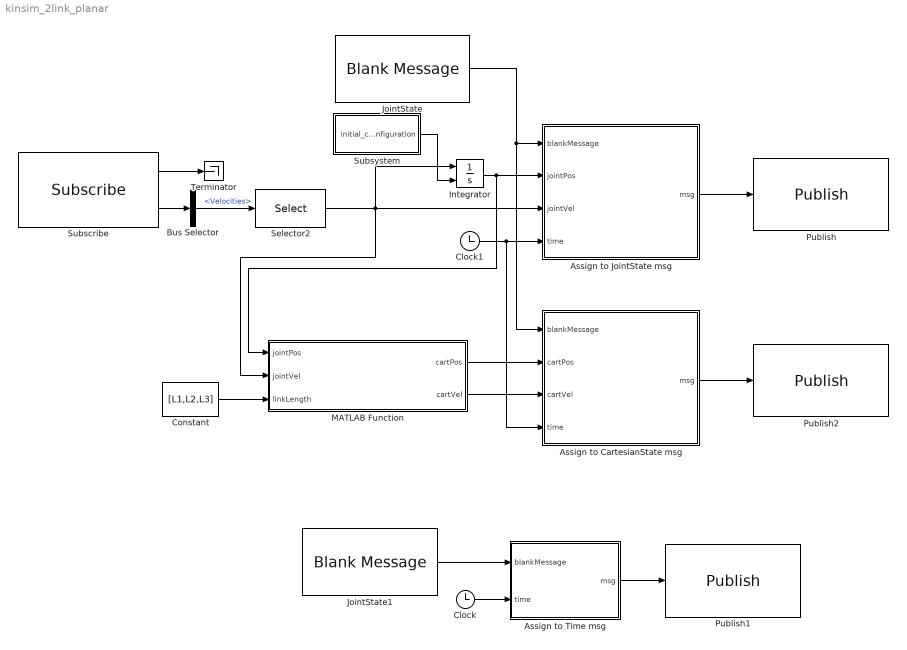
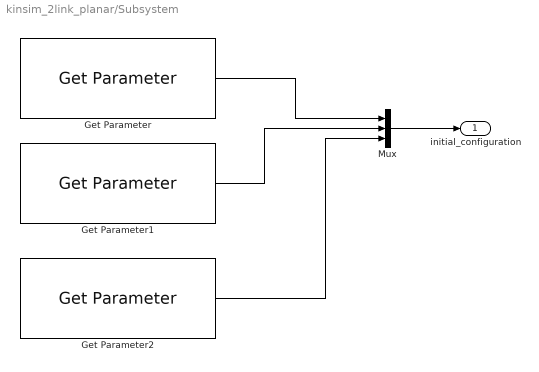
== matlab function kinsim_2link_planar/Assign to Time msg ==
function msg = assign_Time(blankMessage,time)
%#codegen

% Assign the output message to be the same with input blank message
msg = blankMessage;

% Convert and set time
msg.Clock_.Sec  = fix(time);
msg.Clock_.Nsec = fix((time-fix(time))*1e9);

== matlab function kinsim_2link_planar/Assign to JointState msg ==
function msg = assign_JointState(blankMessage,jointPos,jointVel,time)
%#codegen

% Assign the output message to be the same with input blank message
msg = blankMessage;

% Initialize time stamp
msg.Header.Stamp.Sec  = fix(time);
msg.Header.Stamp.Nsec = fix((time-fix(time))*1e9);

% Set the number of strings in the string array, and joint positions/velocities in the position/velocity array
numJoints = length(jointPos);
msg.Name_SL_Info.CurrentLength = uint32(numJoints);
msg.Position_SL_Info.CurrentLength = uint32(numJoints);
msg.Velocity_SL_Info.CurrentLength = uint32(numJoints);

% Set the individual components in the message arrays
strArrayToAssign = {'arm_joint', 'forearm_joint', 'ultimoarm_joint'};

for idx=1:numJoints
    str = strArrayToAssign{idx};
    strLength = length(str);
    msg.Name(idx).Data(1:strLength) = uint8(str);
    msg.Name(idx).Data_SL_Info.CurrentLength = uint32(strLength);

    msg.Position(idx) = jointPos(idx);
    msg.Velocity(idx) = jointVel(idx);
end

== matlab function kinsim_2link_planar/MATLAB Function ==
function [cartPos, cartVel] = forward_kinematics_2link(jointPos,jointVel,linkLength)

cartPos = zeros(1,2);
cartVel = zeros(1,2);

L1 = linkLength(1);
L2 = linkLength(2);
L3 = linkLength(3);
q1 = jointPos(1);
q2 = jointPos(2);
q3 = jointPos(3);
qv1 = jointVel(1);
qv2 = jointVel(2);
qv3 = jointVel(3);

cartPos(1) = L1*cos(q1)+L2*cos(q1+q2)+L3*cos(q1+q2+q3);
cartPos(2) = L1*sin(q1)+L2*sin(q1+q2)+L3*sin(q1+q2+q3);
cartVel(1) = -L1*qv1*sin(q1)-L2*(qv1+qv2)*sin(q1+q2)-L3*(qv1+qv2+qv3)*sin(q1+q2+q3);
cartVel(2) = L1*qv1*cos(q1)+L2*(qv1+qv2)*cos(q1+q2)+L3*(qv1+qv2+qv3)*cos(q1+q2+q3);

== matlab function kinsim_2link_planar/Assign to CartesianState msg ==
function msg = assign_CartesianState(blankMessage,cartPos,cartVel,time)
%#codegen

% Assign the output message to be the same with input blank message
msg = blankMessage;

% Initialize time stamp
msg.Header.Stamp.Sec  = fix(time);
msg.Header.Stamp.Nsec = fix((time-fix(time))*1e9);

% Set the number of strings in the string array, and joint positions/velocities in the position/velocity array
numCoordinates = length(cartPos);
msg.Name_SL_Info.CurrentLength = uint32(numCoordinates);
msg.Position_SL_Info.CurrentLength = uint32(numCoordinates);
msg.Velocity_SL_Info.CurrentLength = uint32(numCoordinates);

% Set the individual components in the message arrays
strArrayToAssign = {'arm_joint', 'forearm_joint', 'ultimoarm_joint'};

for idx=1:numCoordinates
    str = strArrayToAssign{idx};
    strLength = length(str);
    msg.Name(idx).Data(1:strLength) = uint8(str);
    msg.Name(idx).Data_SL_Info.CurrentLength = uint32(strLength);

    msg.Position(idx) = cartPos(idx);
    msg.Velocity(idx) = cartVel(idx);
end

//
// Academic License - for use in teaching, academic research, and meeting
// course requirements at degree granting institutions only.  Not for
// government, commercial, or other organizational use.
//
// File: kinsim_2link_planar.cpp
//
// Code generated for Simulink model 'kinsim_2link_planar'.
//
// Model version                  : 1.118
// Simulink Coder version         : 9.3 (R2020a) 18-Nov-2019
// C/C++ source code generated on : Wed May  6 12:18:09 2020
//
// Target selection: ert.tlc
// Embedded hardware selection: Generic->Unspecified (assume 32-bit Generic)
// Code generation objectives: Unspecified
// Validation result: Not run
//
#include "kinsim_2link_planar.h"
#include "kinsim_2link_planar_private.h"

// Block signals (default storage)
B_kinsim_2link_planar_T kinsim_2link_planar_B;

// Continuous states
X_kinsim_2link_planar_T kinsim_2link_planar_X;

// Block states (default storage)
DW_kinsim_2link_planar_T kinsim_2link_planar_DW;

// Real-time model
RT_MODEL_kinsim_2link_planar_T kinsim_2link_planar_M_ =
  RT_MODEL_kinsim_2link_planar_T();
RT_MODEL_kinsim_2link_planar_T *const kinsim_2link_planar_M =
  &kinsim_2link_planar_M_;

// Forward declaration for local functions
static void kinsim_2link_pl_SystemCore_step(boolean_T *varargout_1, real_T
  varargout_2_Positions[128], uint32_T *varargout_2_Positions_SL_Info_C,
  uint32_T *varargout_2_Positions_SL_Info_R, real_T varargout_2_Velocities[128],
  uint32_T *varargout_2_Velocities_SL_Info_, uint32_T
  *varargout_2_Velocities_SL_Inf_0, real_T varargout_2_Accelerations[128],
  uint32_T *varargout_2_Accelerations_SL_In, uint32_T
  *varargout_2_Accelerations_SL__0, real_T varargout_2_Effort[128], uint32_T
  *varargout_2_Effort_SL_Info_Curr, uint32_T *varargout_2_Effort_SL_Info_Rece,
  real_T *varargout_2_TimeFromStart_Sec, real_T *varargout_2_TimeFromStart_Nsec);
static void matlabCodegenHandle_matlab_li5a(ros_slros_internal_block_GetP_T *obj);
static void matlabCodegenHandle_matlabC_li5(ros_slros_internal_block_Subs_T *obj);
static void matlabCodegenHandle_matlabCodeg(ros_slros_internal_block_Publ_T *obj);

//
// This function updates continuous states using the ODE3 fixed-step
// solver algorithm
//
static void rt_ertODEUpdateContinuousStates(RTWSolverInfo *si )
{
  // Solver Matrices
  static const real_T rt_ODE3_A[3] = {
    1.0/2.0, 3.0/4.0, 1.0
  };

  static const real_T rt_ODE3_B[3][3] = {
    { 1.0/2.0, 0.0, 0.0 },

    { 0.0, 3.0/4.0, 0.0 },

    { 2.0/9.0, 1.0/3.0, 4.0/9.0 }
  };

  time_T t = rtsiGetT(si);
  time_T tnew = rtsiGetSolverStopTime(si);
  time_T h = rtsiGetStepSize(si);
  real_T *x = rtsiGetContStates(si);
  ODE3_IntgData *id = static_cast<ODE3_IntgData *>(rtsiGetSolverData(si));
  real_T *y = id->y;
  real_T *f0 = id->f[0];
  real_T *f1 = id->f[1];
  real_T *f2 = id->f[2];
  real_T hB[3];
  int_T i;
  int_T nXc = 3;
  rtsiSetSimTimeStep(si,MINOR_TIME_STEP);

  // Save the state values at time t in y, we'll use x as ynew.
  (void) memcpy(y, x,
                static_cast<uint_T>(nXc)*sizeof(real_T));

  // Assumes that rtsiSetT and ModelOutputs are up-to-date
  // f0 = f(t,y)
  rtsiSetdX(si, f0);
  kinsim_2link_planar_derivatives();

  // f(:,2) = feval(odefile, t + hA(1), y + f*hB(:,1), args(:)(*));
  hB[0] = h * rt_ODE3_B[0][0];
  for (i = 0; i < nXc; i++) {
    x[i] = y[i] + (f0[i]*hB[0]);
  }

  rtsiSetT(si, t + h*rt_ODE3_A[0]);
  rtsiSetdX(si, f1);
  kinsim_2link_planar_step();
  kinsim_2link_planar_derivatives();

  // f(:,3) = feval(odefile, t + hA(2), y + f*hB(:,2), args(:)(*));
  for (i = 0; i <= 1; i++) {
    hB[i] = h * rt_ODE3_B[1][i];
  }

  for (i = 0; i < nXc; i++) {
    x[i] = y[i] + (f0[i]*hB[0] + f1[i]*hB[1]);
  }

  rtsiSetT(si, t + h*rt_ODE3_A[1]);
  rtsiSetdX(si, f2);
  kinsim_2link_planar_step();
  kinsim_2link_planar_derivatives();

  // tnew = t + hA(3);
  // ynew = y + f*hB(:,3);
  for (i = 0; i <= 2; i++) {
    hB[i] = h * rt_ODE3_B[2][i];
  }

  for (i = 0; i < nXc; i++) {
    x[i] = y[i] + (f0[i]*hB[0] + f1[i]*hB[1] + f2[i]*hB[2]);
  }

  rtsiSetT(si, tnew);
  rtsiSetSimTimeStep(si,MAJOR_TIME_STEP);
}

static void kinsim_2link_pl_SystemCore_step(boolean_T *varargout_1, real_T
  varargout_2_Positions[128], uint32_T *varargout_2_Positions_SL_Info_C,
  uint32_T *varargout_2_Positions_SL_Info_R, real_T varargout_2_Velocities[128],
  uint32_T *varargout_2_Velocities_SL_Info_, uint32_T
  *varargout_2_Velocities_SL_Inf_0, real_T varargout_2_Accelerations[128],
  uint32_T *varargout_2_Accelerations_SL_In, uint32_T
  *varargout_2_Accelerations_SL__0, real_T varargout_2_Effort[128], uint32_T
  *varargout_2_Effort_SL_Info_Curr, uint32_T *varargout_2_Effort_SL_Info_Rece,
  real_T *varargout_2_TimeFromStart_Sec, real_T *varargout_2_TimeFromStart_Nsec)
{
  *varargout_1 = Sub_kinsim_2link_planar_16.getLatestMessage
    (&kinsim_2link_planar_B.b_varargout_2);
  *varargout_2_Positions_SL_Info_C =
    kinsim_2link_planar_B.b_varargout_2.Positions_SL_Info.CurrentLength;
  *varargout_2_Positions_SL_Info_R =
    kinsim_2link_planar_B.b_varargout_2.Positions_SL_Info.ReceivedLength;
  *varargout_2_Velocities_SL_Info_ =
    kinsim_2link_planar_B.b_varargout_2.Velocities_SL_Info.CurrentLength;
  *varargout_2_Velocities_SL_Inf_0 =
    kinsim_2link_planar_B.b_varargout_2.Velocities_SL_Info.ReceivedLength;
  *varargout_2_Accelerations_SL_In =
    kinsim_2link_planar_B.b_varargout_2.Accelerations_SL_Info.CurrentLength;
  *varargout_2_Accelerations_SL__0 =
    kinsim_2link_planar_B.b_varargout_2.Accelerations_SL_Info.ReceivedLength;
  memcpy(&varargout_2_Positions[0],
         &kinsim_2link_planar_B.b_varargout_2.Positions[0], sizeof(real_T) << 7U);
  memcpy(&varargout_2_Velocities[0],
         &kinsim_2link_planar_B.b_varargout_2.Velocities[0], sizeof(real_T) <<
         7U);
  memcpy(&varargout_2_Accelerations[0],
         &kinsim_2link_planar_B.b_varargout_2.Accelerations[0], sizeof(real_T) <<
         7U);
  memcpy(&varargout_2_Effort[0], &kinsim_2link_planar_B.b_varargout_2.Effort[0],
         sizeof(real_T) << 7U);
  *varargout_2_Effort_SL_Info_Curr =
    kinsim_2link_planar_B.b_varargout_2.Effort_SL_Info.CurrentLength;
  *varargout_2_Effort_SL_Info_Rece =
    kinsim_2link_planar_B.b_varargout_2.Effort_SL_Info.ReceivedLength;
  *varargout_2_TimeFromStart_Sec =
    kinsim_2link_planar_B.b_varargout_2.TimeFromStart.Sec;
  *varargout_2_TimeFromStart_Nsec =
    kinsim_2link_planar_B.b_varargout_2.TimeFromStart.Nsec;
}

static void matlabCodegenHandle_matlab_li5a(ros_slros_internal_block_GetP_T *obj)
{
  if (!obj->matlabCodegenIsDeleted) {
    obj->matlabCodegenIsDeleted = true;
  }
}

static void matlabCodegenHandle_matlabC_li5(ros_slros_internal_block_Subs_T *obj)
{
  if (!obj->matlabCodegenIsDeleted) {
    obj->matlabCodegenIsDeleted = true;
  }
}

static void matlabCodegenHandle_matlabCodeg(ros_slros_internal_block_Publ_T *obj)
{
  if (!obj->matlabCodegenIsDeleted) {
    obj->matlabCodegenIsDeleted = true;
  }
}

// Model step function
void kinsim_2link_planar_step(void)
{
  uint32_T b_varargout_2_Positions_SL_Info;
  uint32_T b_varargout_2_Positions_SL_In_0;
  uint32_T b_varargout_2_Velocities_SL_Inf;
  uint32_T b_varargout_2_Velocities_SL_I_0;
  uint32_T b_varargout_2_Accelerations_SL_;
  uint32_T b_varargout_2_Accelerations_S_0;
  uint32_T b_varargout_2_Effort_SL_Info_Cu;
  uint32_T b_varargout_2_Effort_SL_Info_Re;
  boolean_T b_varargout_1;
  int32_T i;
  real_T tmp;
  real_T tmp_0;
  real_T tmp_1;
  static const char_T b[9] = { 'a', 'r', 'm', '_', 'j', 'o', 'i', 'n', 't' };

  static const char_T c[13] = { 'f', 'o', 'r', 'e', 'a', 'r', 'm', '_', 'j', 'o',
    'i', 'n', 't' };

  static const char_T d[15] = { 'u', 'l', 't', 'i', 'm', 'o', 'a', 'r', 'm', '_',
    'j', 'o', 'i', 'n', 't' };

  if (rtmIsMajorTimeStep(kinsim_2link_planar_M)) {
    // set solver stop time
    rtsiSetSolverStopTime(&kinsim_2link_planar_M->solverInfo,
                          ((kinsim_2link_planar_M->Timing.clockTick0+1)*
      kinsim_2link_planar_M->Timing.stepSize0));
  }                                    // end MajorTimeStep

  // Update absolute time of base rate at minor time step
  if (rtmIsMinorTimeStep(kinsim_2link_planar_M)) {
    kinsim_2link_planar_M->Timing.t[0] = rtsiGetT
      (&kinsim_2link_planar_M->solverInfo);
  }

  // MATLABSystem: '<S11>/Get Parameter'
  ParamGet_kinsim_2link_planar_61.get_parameter(&kinsim_2link_planar_B.value);

  // MATLABSystem: '<S11>/Get Parameter1'
  ParamGet_kinsim_2link_planar_65.get_parameter(&kinsim_2link_planar_B.value_m);

  // MATLABSystem: '<S11>/Get Parameter2'
  ParamGet_kinsim_2link_planar_81.get_parameter(&kinsim_2link_planar_B.value_c);

  // Integrator: '<Root>/Integrator' incorporates:
  //   MATLABSystem: '<S11>/Get Parameter'
  //   MATLABSystem: '<S11>/Get Parameter1'
  //   MATLABSystem: '<S11>/Get Parameter2'

  if (kinsim_2link_planar_DW.Integrator_IWORK != 0) {
    kinsim_2link_planar_X.Integrator_CSTATE[0] = kinsim_2link_planar_B.value;
    kinsim_2link_planar_X.Integrator_CSTATE[1] = kinsim_2link_planar_B.value_m;
    kinsim_2link_planar_X.Integrator_CSTATE[2] = kinsim_2link_planar_B.value_c;
  }

  if (rtmIsMajorTimeStep(kinsim_2link_planar_M)) {
    // Outputs for Atomic SubSystem: '<Root>/Subscribe'
    // MATLABSystem: '<S10>/SourceBlock' incorporates:
    //   Inport: '<S12>/In1'

    kinsim_2link_pl_SystemCore_step(&b_varargout_1,
      kinsim_2link_planar_B.b_varargout_2_Positions,
      &b_varargout_2_Positions_SL_Info, &b_varargout_2_Positions_SL_In_0,
      kinsim_2link_planar_B.b_varargout_2_Velocities,
      &b_varargout_2_Velocities_SL_Inf, &b_varargout_2_Velocities_SL_I_0,
      kinsim_2link_planar_B.b_varargout_2_Accelerations,
      &b_varargout_2_Accelerations_SL_, &b_varargout_2_Accelerations_S_0,
      kinsim_2link_planar_B.b_varargout_2_Effort,
      &b_varargout_2_Effort_SL_Info_Cu, &b_varargout_2_Effort_SL_Info_Re,
      &kinsim_2link_planar_B.value, &kinsim_2link_planar_B.value_m);

    // Outputs for Enabled SubSystem: '<S10>/Enabled Subsystem' incorporates:
    //   EnablePort: '<S12>/Enable'

    if (b_varargout_1) {
      kinsim_2link_planar_B.In1.Positions_SL_Info.CurrentLength =
        b_varargout_2_Positions_SL_Info;
      kinsim_2link_planar_B.In1.Positions_SL_Info.ReceivedLength =
        b_varargout_2_Positions_SL_In_0;
      kinsim_2link_planar_B.In1.Velocities_SL_Info.CurrentLength =
        b_varargout_2_Velocities_SL_Inf;
      kinsim_2link_planar_B.In1.Velocities_SL_Info.ReceivedLength =
        b_varargout_2_Velocities_SL_I_0;
      kinsim_2link_planar_B.In1.Accelerations_SL_Info.CurrentLength =
        b_varargout_2_Accelerations_SL_;
      kinsim_2link_planar_B.In1.Accelerations_SL_Info.ReceivedLength =
        b_varargout_2_Accelerations_S_0;
      memcpy(&kinsim_2link_planar_B.In1.Positions[0],
             &kinsim_2link_planar_B.b_varargout_2_Positions[0], sizeof(real_T) <<
             7U);
      memcpy(&kinsim_2link_planar_B.In1.Velocities[0],
             &kinsim_2link_planar_B.b_varargout_2_Velocities[0], sizeof(real_T) <<
             7U);
      memcpy(&kinsim_2link_planar_B.In1.Accelerations[0],
             &kinsim_2link_planar_B.b_varargout_2_Accelerations[0], sizeof
             (real_T) << 7U);
      memcpy(&kinsim_2link_planar_B.In1.Effort[0],
             &kinsim_2link_planar_B.b_varargout_2_Effort[0], sizeof(real_T) <<
             7U);
      kinsim_2link_planar_B.In1.Effort_SL_Info.CurrentLength =
        b_varargout_2_Effort_SL_Info_Cu;
      kinsim_2link_planar_B.In1.Effort_SL_Info.ReceivedLength =
        b_varargout_2_Effort_SL_Info_Re;
      kinsim_2link_planar_B.In1.TimeFromStart.Sec = kinsim_2link_planar_B.value;
      kinsim_2link_planar_B.In1.TimeFromStart.Nsec =
        kinsim_2link_planar_B.value_m;
    }

    // End of MATLABSystem: '<S10>/SourceBlock'
    // End of Outputs for SubSystem: '<S10>/Enabled Subsystem'
    // End of Outputs for SubSystem: '<Root>/Subscribe'
  }

  // Clock: '<Root>/Clock1' incorporates:
  //   Clock: '<Root>/Clock'

  kinsim_2link_planar_B.value = kinsim_2link_planar_M->Timing.t[0];

  // MATLAB Function: '<Root>/Assign to CartesianState msg' incorporates:
  //   Clock: '<Root>/Clock1'
  //   Constant: '<S4>/Constant'

  kinsim_2link_planar_B.msg_d = kinsim_2link_planar_P.Constant_Value;
  if (kinsim_2link_planar_B.value < 0.0) {
    // MATLAB Function: '<Root>/Assign to JointState msg'
    kinsim_2link_planar_B.value_m = ceil(kinsim_2link_planar_B.value);
  } else {
    // MATLAB Function: '<Root>/Assign to JointState msg'
    kinsim_2link_planar_B.value_m = floor(kinsim_2link_planar_B.value);
  }

  kinsim_2link_planar_B.msg_d.Header.Stamp.Sec = kinsim_2link_planar_B.value_m;
  kinsim_2link_planar_B.value_c = (kinsim_2link_planar_B.value -
    kinsim_2link_planar_B.value_m) * 1.0E+9;
  if (kinsim_2link_planar_B.value_c < 0.0) {
    // MATLAB Function: '<Root>/Assign to JointState msg'
    kinsim_2link_planar_B.value_c = ceil(kinsim_2link_planar_B.value_c);
  } else {
    // MATLAB Function: '<Root>/Assign to JointState msg'
    kinsim_2link_planar_B.value_c = floor(kinsim_2link_planar_B.value_c);
  }

  kinsim_2link_planar_B.msg_d.Header.Stamp.Nsec = kinsim_2link_planar_B.value_c;
  kinsim_2link_planar_B.msg_d.Name_SL_Info.CurrentLength = 2U;
  kinsim_2link_planar_B.msg_d.Position_SL_Info.CurrentLength = 2U;
  kinsim_2link_planar_B.msg_d.Velocity_SL_Info.CurrentLength = 2U;
  for (i = 0; i < 9; i++) {
    kinsim_2link_planar_B.msg_d.Name[0].Data[i] = static_cast<uint8_T>(b[i]);
  }

  kinsim_2link_planar_B.msg_d.Name[0].Data_SL_Info.CurrentLength = 9U;

  // MATLAB Function: '<Root>/MATLAB Function' incorporates:
  //   Integrator: '<Root>/Integrator'

  kinsim_2link_planar_B.d1 = cos(kinsim_2link_planar_X.Integrator_CSTATE[0]);
  kinsim_2link_planar_B.d4 = kinsim_2link_planar_X.Integrator_CSTATE[0] +
    kinsim_2link_planar_X.Integrator_CSTATE[1];
  kinsim_2link_planar_B.d2 = cos(kinsim_2link_planar_B.d4);
  tmp = kinsim_2link_planar_B.d4 + kinsim_2link_planar_X.Integrator_CSTATE[2];
  kinsim_2link_planar_B.d3 = cos(tmp);

  // MATLAB Function: '<Root>/Assign to CartesianState msg' incorporates:
  //   Constant: '<Root>/Constant'
  //   MATLAB Function: '<Root>/MATLAB Function'

  kinsim_2link_planar_B.msg_d.Position[0] =
    (kinsim_2link_planar_P.Constant_Value_m[0] * kinsim_2link_planar_B.d1 +
     kinsim_2link_planar_P.Constant_Value_m[1] * kinsim_2link_planar_B.d2) +
    kinsim_2link_planar_P.Constant_Value_m[2] * kinsim_2link_planar_B.d3;

  // MATLAB Function: '<Root>/MATLAB Function' incorporates:
  //   Constant: '<Root>/Constant'
  //   Integrator: '<Root>/Integrator'

  kinsim_2link_planar_B.d = sin(kinsim_2link_planar_X.Integrator_CSTATE[0]);
  kinsim_2link_planar_B.d4 = sin(kinsim_2link_planar_B.d4);
  tmp = sin(tmp);
  tmp_0 = kinsim_2link_planar_B.In1.Velocities[0] +
    kinsim_2link_planar_B.In1.Velocities[1];
  tmp_1 = tmp_0 * kinsim_2link_planar_P.Constant_Value_m[1];
  tmp_0 = (tmp_0 + kinsim_2link_planar_B.In1.Velocities[2]) *
    kinsim_2link_planar_P.Constant_Value_m[2];

  // MATLAB Function: '<Root>/Assign to CartesianState msg' incorporates:
  //   Constant: '<Root>/Constant'
  //   MATLAB Function: '<Root>/MATLAB Function'

  kinsim_2link_planar_B.msg_d.Velocity[0] =
    (-kinsim_2link_planar_P.Constant_Value_m[0] *
     kinsim_2link_planar_B.In1.Velocities[0] * kinsim_2link_planar_B.d - tmp_1 *
     kinsim_2link_planar_B.d4) - tmp_0 * tmp;
  for (i = 0; i < 13; i++) {
    kinsim_2link_planar_B.msg_d.Name[1].Data[i] = static_cast<uint8_T>(c[i]);
  }

  kinsim_2link_planar_B.msg_d.Name[1].Data_SL_Info.CurrentLength = 13U;
  kinsim_2link_planar_B.msg_d.Position[1] =
    (kinsim_2link_planar_P.Constant_Value_m[0] * kinsim_2link_planar_B.d +
     kinsim_2link_planar_P.Constant_Value_m[1] * kinsim_2link_planar_B.d4) +
    kinsim_2link_planar_P.Constant_Value_m[2] * tmp;
  kinsim_2link_planar_B.msg_d.Velocity[1] = (tmp_1 * kinsim_2link_planar_B.d2 +
    kinsim_2link_planar_P.Constant_Value_m[0] *
    kinsim_2link_planar_B.In1.Velocities[0] * kinsim_2link_planar_B.d1) + tmp_0 *
    kinsim_2link_planar_B.d3;

  // Outputs for Atomic SubSystem: '<Root>/Publish2'
  // MATLABSystem: '<S9>/SinkBlock'
  Pub_kinsim_2link_planar_79.publish(&kinsim_2link_planar_B.msg_d);

  // End of Outputs for SubSystem: '<Root>/Publish2'

  // MATLAB Function: '<Root>/Assign to JointState msg' incorporates:
  //   Constant: '<S4>/Constant'
  //   Integrator: '<Root>/Integrator'

  kinsim_2link_planar_B.msg_d = kinsim_2link_planar_P.Constant_Value;
  kinsim_2link_planar_B.msg_d.Header.Stamp.Sec = kinsim_2link_planar_B.value_m;
  kinsim_2link_planar_B.msg_d.Header.Stamp.Nsec = kinsim_2link_planar_B.value_c;
  kinsim_2link_planar_B.msg_d.Name_SL_Info.CurrentLength = 3U;
  kinsim_2link_planar_B.msg_d.Position_SL_Info.CurrentLength = 3U;
  kinsim_2link_planar_B.msg_d.Velocity_SL_Info.CurrentLength = 3U;
  for (i = 0; i < 9; i++) {
    kinsim_2link_planar_B.msg_d.Name[0].Data[i] = static_cast<uint8_T>(b[i]);
  }

  kinsim_2link_planar_B.msg_d.Name[0].Data_SL_Info.CurrentLength = 9U;
  kinsim_2link_planar_B.msg_d.Position[0] =
    kinsim_2link_planar_X.Integrator_CSTATE[0];
  kinsim_2link_planar_B.msg_d.Velocity[0] =
    kinsim_2link_planar_B.In1.Velocities[0];
  for (i = 0; i < 13; i++) {
    kinsim_2link_planar_B.msg_d.Name[1].Data[i] = static_cast<uint8_T>(c[i]);
  }

  kinsim_2link_planar_B.msg_d.Name[1].Data_SL_Info.CurrentLength = 13U;
  kinsim_2link_planar_B.msg_d.Position[1] =
    kinsim_2link_planar_X.Integrator_CSTATE[1];
  kinsim_2link_planar_B.msg_d.Velocity[1] =
    kinsim_2link_planar_B.In1.Velocities[1];
  for (i = 0; i < 15; i++) {
    kinsim_2link_planar_B.msg_d.Name[2].Data[i] = static_cast<uint8_T>(d[i]);
  }

  kinsim_2link_planar_B.msg_d.Name[2].Data_SL_Info.CurrentLength = 15U;
  kinsim_2link_planar_B.msg_d.Position[2] =
    kinsim_2link_planar_X.Integrator_CSTATE[2];
  kinsim_2link_planar_B.msg_d.Velocity[2] =
    kinsim_2link_planar_B.In1.Velocities[2];

  // Outputs for Atomic SubSystem: '<Root>/Publish'
  // MATLABSystem: '<S7>/SinkBlock'
  Pub_kinsim_2link_planar_22.publish(&kinsim_2link_planar_B.msg_d);

  // End of Outputs for SubSystem: '<Root>/Publish'

  // MATLAB Function: '<Root>/Assign to Time msg'
  if (kinsim_2link_planar_B.value < 0.0) {
    kinsim_2link_planar_B.value_m = ceil(kinsim_2link_planar_B.value);
  } else {
    kinsim_2link_planar_B.value_m = floor(kinsim_2link_planar_B.value);
  }

  kinsim_2link_planar_B.msg_l.Clock_.Sec = kinsim_2link_planar_B.value_m;
  kinsim_2link_planar_B.value_c = (kinsim_2link_planar_B.value -
    kinsim_2link_planar_B.value_m) * 1.0E+9;
  if (kinsim_2link_planar_B.value_c < 0.0) {
    kinsim_2link_planar_B.msg_l.Clock_.Nsec = ceil(kinsim_2link_planar_B.value_c);
  } else {
    kinsim_2link_planar_B.msg_l.Clock_.Nsec = floor
      (kinsim_2link_planar_B.value_c);
  }

  // End of MATLAB Function: '<Root>/Assign to Time msg'

  // Outputs for Atomic SubSystem: '<Root>/Publish1'
  // MATLABSystem: '<S8>/SinkBlock'
  Pub_kinsim_2link_planar_50.publish(&kinsim_2link_planar_B.msg_l);

  // End of Outputs for SubSystem: '<Root>/Publish1'
  if (rtmIsMajorTimeStep(kinsim_2link_planar_M)) {
    // Update for Integrator: '<Root>/Integrator'
    kinsim_2link_planar_DW.Integrator_IWORK = 0;
  }                                    // end MajorTimeStep

  if (rtmIsMajorTimeStep(kinsim_2link_planar_M)) {
    rt_ertODEUpdateContinuousStates(&kinsim_2link_planar_M->solverInfo);

    // Update absolute time for base rate
    // The "clockTick0" counts the number of times the code of this task has
    //  been executed. The absolute time is the multiplication of "clockTick0"
    //  and "Timing.stepSize0". Size of "clockTick0" ensures timer will not
    //  overflow during the application lifespan selected.

    ++kinsim_2link_planar_M->Timing.clockTick0;
    kinsim_2link_planar_M->Timing.t[0] = rtsiGetSolverStopTime
      (&kinsim_2link_planar_M->solverInfo);

    {
      // Update absolute timer for sample time: [0.05s, 0.0s]
      // The "clockTick1" counts the number of times the code of this task has
      //  been executed. The resolution of this integer timer is 0.05, which is the step size
      //  of the task. Size of "clockTick1" ensures timer will not overflow during the
      //  application lifespan selected.

      kinsim_2link_planar_M->Timing.clockTick1++;
    }
  }                                    // end MajorTimeStep
}
